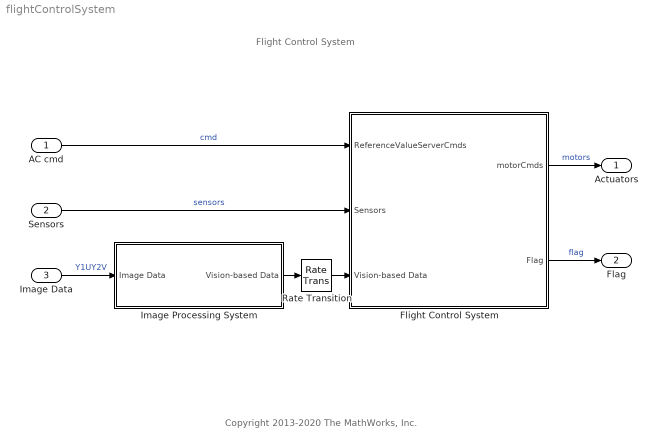
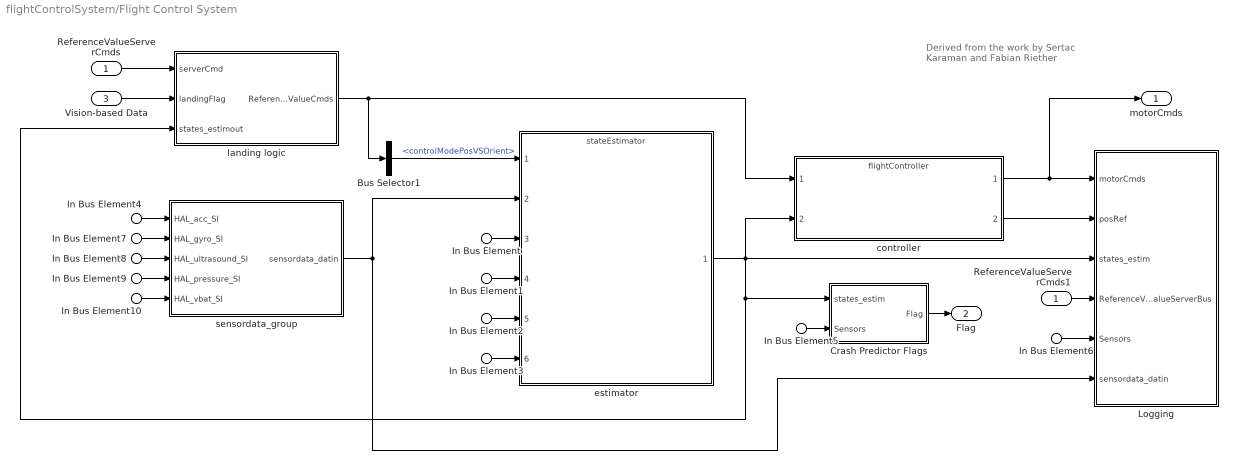
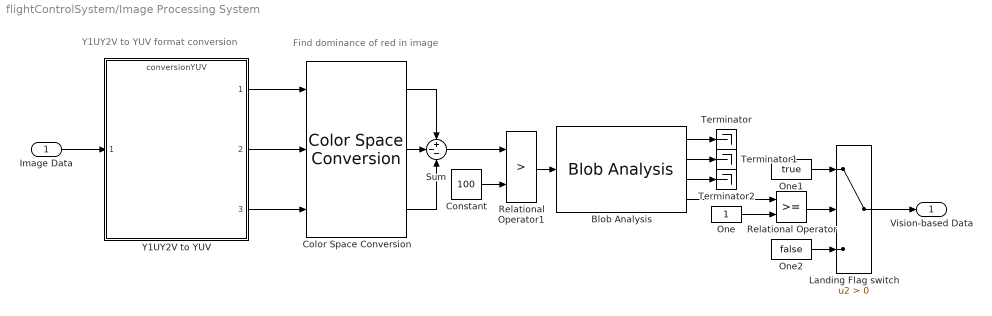
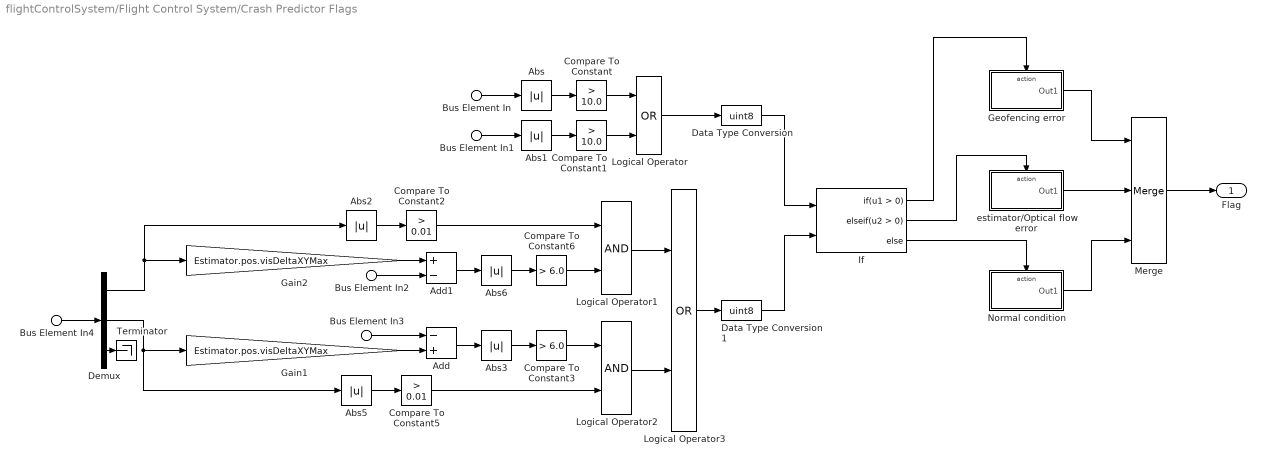
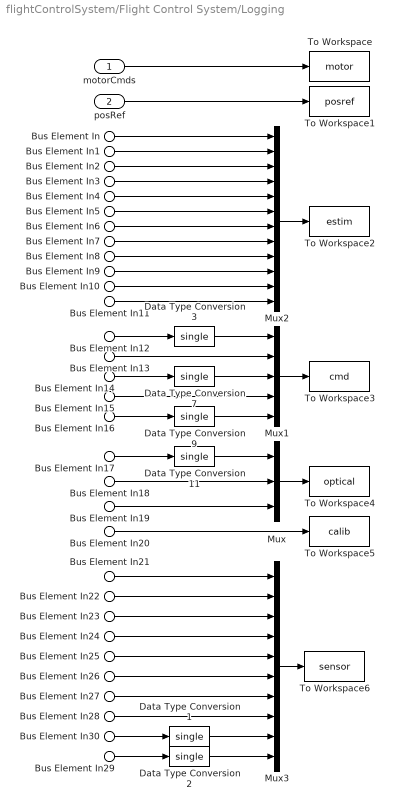
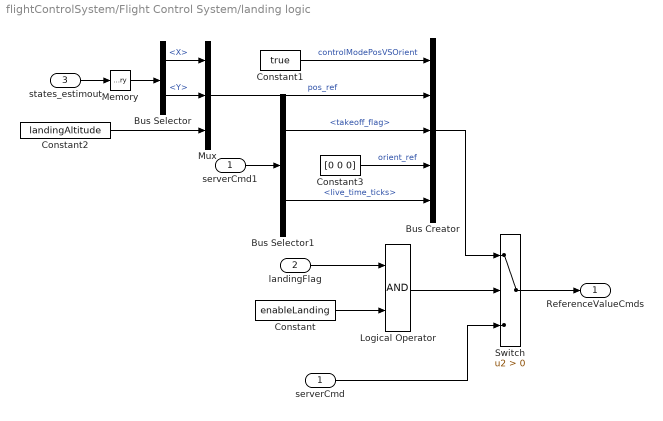
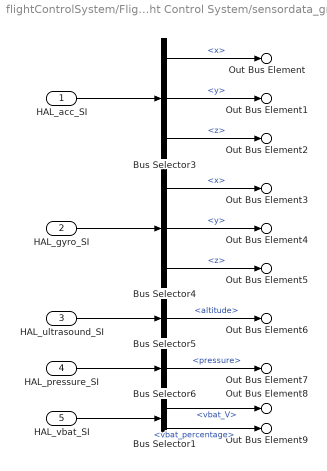
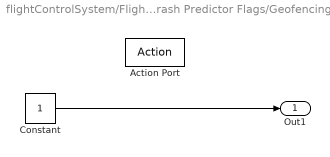
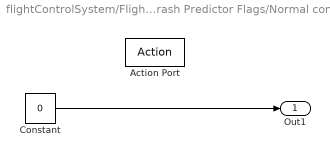
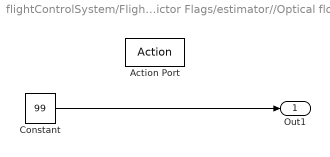
/*
 * Academic License - for use in teaching, academic research, and meeting
 * course requirements at degree granting institutions only.  Not for
 * government, commercial, or other organizational use.
 *
 * File: flightControlSystem.c
 *
 * Code generated for Simulink model 'flightControlSystem'.
 *
 * Model version                  : 5.1
 * Simulink Coder version         : 9.6 (R2021b) 14-May-2021
 * C/C++ source code generated on : Tue Nov 30 09:39:25 2021
 *
 * Target selection: ert.tlc
 * Embedded hardware selection: ARM Compatible->ARM 9
 * Code generation objectives: Unspecified
 * Validation result: Not run
 */

#include "flightControlSystem.h"
#include "flightControlSystem_private.h"

/* Exported block signals */
CommandBus cmd_inport;                 /* '<Root>/AC cmd' */
SensorsBus sensor_inport;              /* '<Root>/Sensors' */
real32_T motors_outport[4];            /* '<S1>/controller' */
uint8_T flag_outport;                  /* '<S3>/Merge' */

/* Block signals (default storage) */
B_flightControlSystem_T flightControlSystem_B;

/* Block states (default storage) */
DW_flightControlSystem_T flightControlSystem_DW;

/* External outputs (root outports fed by signals with default storage) */
ExtY_flightControlSystem_T flightControlSystem_Y;

/* Real-time model */
static RT_MODEL_flightControlSystem_T flightControlSystem_M_;
RT_MODEL_flightControlSystem_T *const flightControlSystem_M =
  &flightControlSystem_M_;
static void rate_monotonic_scheduler(void);

/*
 * Set which subrates need to run this base step (base rate always runs).
 * This function must be called prior to calling the model step function
 * in order to "remember" which rates need to run this base step.  The
 * buffering of events allows for overlapping preemption.
 */
void flightControlSystem_SetEventsForThisBaseStep(boolean_T *eventFlags)
{
  /* Task runs when its counter is zero, computed via rtmStepTask macro */
  eventFlags[1] = ((boolean_T)rtmStepTask(flightControlSystem_M, 1));
}

/*
 *         This function updates active task flag for each subrate
 *         and rate transition flags for tasks that exchange data.
 *         The function assumes rate-monotonic multitasking scheduler.
 *         The function must be called at model base rate so that
 *         the generated code self-manages all its subrates and rate
 *         transition flags.
 */
static void rate_monotonic_scheduler(void)
{
  /* Compute which subrates run during the next base time step.  Subrates
   * are an integer multiple of the base rate counter.  Therefore, the subtask
   * counter is reset when it reaches its limit (zero means run).
   */
  (flightControlSystem_M->Timing.TaskCounters.TID[1])++;
  if ((flightControlSystem_M->Timing.TaskCounters.TID[1]) > 39) {/* Sample time: [0.2s, 0.0s] */
    flightControlSystem_M->Timing.TaskCounters.TID[1] = 0;
  }
}

/*
 * Output and update for action system:
 *    '<S3>/Geofencing error'
 *    '<S3>/estimator//Optical flow error'
 *    '<S3>/Normal condition'
 */
void flightControlSystem_Geofencingerror(uint8_T *rty_Out1,
  P_Geofencingerror_flightControlSystem_T *localP)
{
  /* SignalConversion generated from: '<S13>/Out1' incorporates:
   *  Constant: '<S13>/Constant'
   */
  *rty_Out1 = localP->Constant_Value;
}

/* System initialize for atomic system: '<S1>/Logging' */
void flightControlSystem_Logging_Init(RT_MODEL_flightControlSystem_T * const
  flightControlSystem_M, DW_Logging_flightControlSystem_T *localDW)
{
  /* SetupRuntimeResources for ToWorkspace: '<S4>/To Workspace2' */
  {
    static int_T rt_ToWksWidths[] = { 12 };

    static int_T rt_ToWksNumDimensions[] = { 1 };

    static int_T rt_ToWksDimensions[] = { 12 };

    static boolean_T rt_ToWksIsVarDims[] = { 0 };

    static void *rt_ToWksCurrSigDims[] = { (NULL) };

    static int_T rt_ToWksCurrSigDimsSize[] = { 4 };

    static BuiltInDTypeId rt_ToWksDataTypeIds[] = { SS_SINGLE };

    static int_T rt_ToWksComplexSignals[] = { 0 };

    static int_T rt_ToWksFrameData[] = { 0 };

    static RTWPreprocessingFcnPtr rt_ToWksLoggingPreprocessingFcnPtrs[] = {
      (NULL)
    };

    static const char_T *rt_ToWksLabels[] = { "" };

    static RTWLogSignalInfo rt_ToWksSignalInfo = {
      1,
      rt_ToWksWidths,
      rt_ToWksNumDimensions,
      rt_ToWksDimensions,
      rt_ToWksIsVarDims,
      rt_ToWksCurrSigDims,
      rt_ToWksCurrSigDimsSize,
      rt_ToWksDataTypeIds,
      rt_ToWksComplexSignals,
      rt_ToWksFrameData,
      rt_ToWksLoggingPreprocessingFcnPtrs,

      { rt_ToWksLabels },
      (NULL),
      (NULL),
      (NULL),

      { (NULL) },

      { (NULL) },
      (NULL),
      (NULL)
    };

    static const char_T rt_ToWksBlockName[] =
      "flightControlSystem/Flight Control System/Logging/To Workspace2";
    localDW->ToWorkspace2_PWORK.LoggedData = rt_CreateStructLogVar(
      flightControlSystem_M->rtwLogInfo,
      0.0,
      rtmGetTFinal(flightControlSystem_M),
      flightControlSystem_M->Timing.stepSize0,
      (&rtmGetErrorStatus(flightControlSystem_M)),
      "estim",
      1,
      0,
      1,
      0.005,
      &rt_ToWksSignalInfo,
      rt_ToWksBlockName);
    if (localDW->ToWorkspace2_PWORK.LoggedData == (NULL))
      return;
  }

  /* SetupRuntimeResources for ToWorkspace: '<S4>/To Workspace6' */
  {
    static int_T rt_ToWksWidths[] = { 10 };

    static int_T rt_ToWksNumDimensions[] = { 1 };

    static int_T rt_ToWksDimensions[] = { 10 };

    static boolean_T rt_ToWksIsVarDims[] = { 0 };

    static void *rt_ToWksCurrSigDims[] = { (NULL) };

    static int_T rt_ToWksCurrSigDimsSize[] = { 4 };

    static BuiltInDTypeId rt_ToWksDataTypeIds[] = { SS_SINGLE };

    static int_T rt_ToWksComplexSignals[] = { 0 };

    static int_T rt_ToWksFrameData[] = { 0 };

    static RTWPreprocessingFcnPtr rt_ToWksLoggingPreprocessingFcnPtrs[] = {
      (NULL)
    };

    static const char_T *rt_ToWksLabels[] = { "" };

    static RTWLogSignalInfo rt_ToWksSignalInfo = {
      1,
      rt_ToWksWidths,
      rt_ToWksNumDimensions,
      rt_ToWksDimensions,
      rt_ToWksIsVarDims,
      rt_ToWksCurrSigDims,
      rt_ToWksCurrSigDimsSize,
      rt_ToWksDataTypeIds,
      rt_ToWksComplexSignals,
      rt_ToWksFrameData,
      rt_ToWksLoggingPreprocessingFcnPtrs,

      { rt_ToWksLabels },
      (NULL),
      (NULL),
      (NULL),

      { (NULL) },

      { (NULL) },
      (NULL),
      (NULL)
    };

    static const char_T rt_ToWksBlockName[] =
      "flightControlSystem/Flight Control System/Logging/To Workspace6";
    localDW->ToWorkspace6_PWORK.LoggedData = rt_CreateStructLogVar(
      flightControlSystem_M->rtwLogInfo,
      0.0,
      rtmGetTFinal(flightControlSystem_M),
      flightControlSystem_M->Timing.stepSize0,
      (&rtmGetErrorStatus(flightControlSystem_M)),
      "sensor",
      1,
      0,
      1,
      0.005,
      &rt_ToWksSignalInfo,
      rt_ToWksBlockName);
    if (localDW->ToWorkspace6_PWORK.LoggedData == (NULL))
      return;
  }

  /* SetupRuntimeResources for ToWorkspace: '<S4>/To Workspace3' */
  {
    static int_T rt_ToWksWidths[] = { 9 };

    static int_T rt_ToWksNumDimensions[] = { 1 };

    static int_T rt_ToWksDimensions[] = { 9 };

    static boolean_T rt_ToWksIsVarDims[] = { 0 };

    static void *rt_ToWksCurrSigDims[] = { (NULL) };

    static int_T rt_ToWksCurrSigDimsSize[] = { 4 };

    static BuiltInDTypeId rt_ToWksDataTypeIds[] = { SS_SINGLE };

    static int_T rt_ToWksComplexSignals[] = { 0 };

    static int_T rt_ToWksFrameData[] = { 0 };

    static RTWPreprocessingFcnPtr rt_ToWksLoggingPreprocessingFcnPtrs[] = {
      (NULL)
    };

    static const char_T *rt_ToWksLabels[] = { "" };

    static RTWLogSignalInfo rt_ToWksSignalInfo = {
      1,
      rt_ToWksWidths,
      rt_ToWksNumDimensions,
      rt_ToWksDimensions,
      rt_ToWksIsVarDims,
      rt_ToWksCurrSigDims,
      rt_ToWksCurrSigDimsSize,
      rt_ToWksDataTypeIds,
      rt_ToWksComplexSignals,
      rt_ToWksFrameData,
      rt_ToWksLoggingPreprocessingFcnPtrs,

      { rt_ToWksLabels },
      (NULL),
      (NULL),
      (NULL),

      { (NULL) },

      { (NULL) },
      (NULL),
      (NULL)
    };

    static const char_T rt_ToWksBlockName[] =
      "flightControlSystem/Flight Control System/Logging/To Workspace3";
    localDW->ToWorkspace3_PWORK.LoggedData = rt_CreateStructLogVar(
      flightControlSystem_M->rtwLogInfo,
      0.0,
      rtmGetTFinal(flightControlSystem_M),
      flightControlSystem_M->Timing.stepSize0,
      (&rtmGetErrorStatus(flightControlSystem_M)),
      "cmd",
      1,
      0,
      1,
      0.005,
      &rt_ToWksSignalInfo,
      rt_ToWksBlockName);
    if (localDW->ToWorkspace3_PWORK.LoggedData == (NULL))
      return;
  }

  /* SetupRuntimeResources for ToWorkspace: '<S4>/To Workspace4' */
  {
    static int_T rt_ToWksWidths[] = { 8 };

    static int_T rt_ToWksNumDimensions[] = { 1 };

    static int_T rt_ToWksDimensions[] = { 8 };

    static boolean_T rt_ToWksIsVarDims[] = { 0 };

    static void *rt_ToWksCurrSigDims[] = { (NULL) };

    static int_T rt_ToWksCurrSigDimsSize[] = { 4 };

    static BuiltInDTypeId rt_ToWksDataTypeIds[] = { SS_SINGLE };

    static int_T rt_ToWksComplexSignals[] = { 0 };

    static int_T rt_ToWksFrameData[] = { 0 };

    static RTWPreprocessingFcnPtr rt_ToWksLoggingPreprocessingFcnPtrs[] = {
      (NULL)
    };

    static const char_T *rt_ToWksLabels[] = { "" };

    static RTWLogSignalInfo rt_ToWksSignalInfo = {
      1,
      rt_ToWksWidths,
      rt_ToWksNumDimensions,
      rt_ToWksDimensions,
      rt_ToWksIsVarDims,
      rt_ToWksCurrSigDims,
      rt_ToWksCurrSigDimsSize,
      rt_ToWksDataTypeIds,
      rt_ToWksComplexSignals,
      rt_ToWksFrameData,
      rt_ToWksLoggingPreprocessingFcnPtrs,

      { rt_ToWksLabels },
      (NULL),
      (NULL),
      (NULL),

      { (NULL) },

      { (NULL) },
      (NULL),
      (NULL)
    };

    static const char_T rt_ToWksBlockName[] =
      "flightControlSystem/Flight Control System/Logging/To Workspace4";
    localDW->ToWorkspace4_PWORK.LoggedData = rt_CreateStructLogVar(
      flightControlSystem_M->rtwLogInfo,
      0.0,
      rtmGetTFinal(flightControlSystem_M),
      flightControlSystem_M->Timing.stepSize0,
      (&rtmGetErrorStatus(flightControlSystem_M)),
      "optical",
      1,
      0,
      1,
      0.005,
      &rt_ToWksSignalInfo,
      rt_ToWksBlockName);
    if (localDW->ToWorkspace4_PWORK.LoggedData == (NULL))
      return;
  }

  /* SetupRuntimeResources for ToWorkspace: '<S4>/To Workspace5' */
  {
    static int_T rt_ToWksWidths[] = { 8 };

    static int_T rt_ToWksNumDimensions[] = { 1 };

    static int_T rt_ToWksDimensions[] = { 8 };

    static boolean_T rt_ToWksIsVarDims[] = { 0 };

    static void *rt_ToWksCurrSigDims[] = { (NULL) };

    static int_T rt_ToWksCurrSigDimsSize[] = { 4 };

    static BuiltInDTypeId rt_ToWksDataTypeIds[] = { SS_SINGLE };

    static int_T rt_ToWksComplexSignals[] = { 0 };

    static int_T rt_ToWksFrameData[] = { 0 };

    static RTWPreprocessingFcnPtr rt_ToWksLoggingPreprocessingFcnPtrs[] = {
      (NULL)
    };

    static const char_T *rt_ToWksLabels[] = { "SensorCalibration" };

    static RTWLogSignalInfo rt_ToWksSignalInfo = {
      1,
      rt_ToWksWidths,
      rt_ToWksNumDimensions,
      rt_ToWksDimensions,
      rt_ToWksIsVarDims,
      rt_ToWksCurrSigDims,
      rt_ToWksCurrSigDimsSize,
      rt_ToWksDataTypeIds,
      rt_ToWksComplexSignals,
      rt_ToWksFrameData,
      rt_ToWksLoggingPreprocessingFcnPtrs,

      { rt_ToWksLabels },
      (NULL),
      (NULL),
      (NULL),

      { (NULL) },

      { (NULL) },
      (NULL),
      (NULL)
    };

    static const char_T rt_ToWksBlockName[] =
      "flightControlSystem/Flight Control System/Logging/To Workspace5";
    localDW->ToWorkspace5_PWORK.LoggedData = rt_CreateStructLogVar(
      flightControlSystem_M->rtwLogInfo,
      0.0,
      rtmGetTFinal(flightControlSystem_M),
      flightControlSystem_M->Timing.stepSize0,
      (&rtmGetErrorStatus(flightControlSystem_M)),
      "calib",
      1,
      0,
      100,
      0.005,
      &rt_ToWksSignalInfo,
      rt_ToWksBlockName);
    if (localDW->ToWorkspace5_PWORK.LoggedData == (NULL))
      return;
  }

  /* SetupRuntimeResources for ToWorkspace: '<S4>/To Workspace' */
  {
    static int_T rt_ToWksWidths[] = { 4 };

    static int_T rt_ToWksNumDimensions[] = { 1 };

    static int_T rt_ToWksDimensions[] = { 4 };

    static boolean_T rt_ToWksIsVarDims[] = { 0 };

    static void *rt_ToWksCurrSigDims[] = { (NULL) };

    static int_T rt_ToWksCurrSigDimsSize[] = { 4 };

    static BuiltInDTypeId rt_ToWksDataTypeIds[] = { SS_SINGLE };

    static int_T rt_ToWksComplexSignals[] = { 0 };

    static int_T rt_ToWksFrameData[] = { 0 };

    static RTWPreprocessingFcnPtr rt_ToWksLoggingPreprocessingFcnPtrs[] = {
      (NULL)
    };

    static const char_T *rt_ToWksLabels[] = { "" };

    static RTWLogSignalInfo rt_ToWksSignalInfo = {
      1,
      rt_ToWksWidths,
      rt_ToWksNumDimensions,
      rt_ToWksDimensions,
      rt_ToWksIsVarDims,
      rt_ToWksCurrSigDims,
      rt_ToWksCurrSigDimsSize,
      rt_ToWksDataTypeIds,
      rt_ToWksComplexSignals,
      rt_ToWksFrameData,
      rt_ToWksLoggingPreprocessingFcnPtrs,

      { rt_ToWksLabels },
      (NULL),
      (NULL),
      (NULL),

      { (NULL) },

      { (NULL) },
      (NULL),
      (NULL)
    };

    static const char_T rt_ToWksBlockName[] =
      "flightControlSystem/Flight Control System/Logging/To Workspace";
    localDW->ToWorkspace_PWORK.LoggedData = rt_CreateStructLogVar(
      flightControlSystem_M->rtwLogInfo,
      0.0,
      rtmGetTFinal(flightControlSystem_M),
      flightControlSystem_M->Timing.stepSize0,
      (&rtmGetErrorStatus(flightControlSystem_M)),
      "motor",
      1,
      0,
      1,
      0.005,
      &rt_ToWksSignalInfo,
      rt_ToWksBlockName);
    if (localDW->ToWorkspace_PWORK.LoggedData == (NULL))
      return;
  }

  /* SetupRuntimeResources for ToWorkspace: '<S4>/To Workspace1' */
  {
    static int_T rt_ToWksWidths[] = { 8 };

    static int_T rt_ToWksNumDimensions[] = { 1 };

    static int_T rt_ToWksDimensions[] = { 8 };

    static boolean_T rt_ToWksIsVarDims[] = { 0 };

    static void *rt_ToWksCurrSigDims[] = { (NULL) };

    static int_T rt_ToWksCurrSigDimsSize[] = { 4 };

    static BuiltInDTypeId rt_ToWksDataTypeIds[] = { SS_SINGLE };

    static int_T rt_ToWksComplexSignals[] = { 0 };

    static int_T rt_ToWksFrameData[] = { 0 };

    static RTWPreprocessingFcnPtr rt_ToWksLoggingPreprocessingFcnPtrs[] = {
      (NULL)
    };

    static const char_T *rt_ToWksLabels[] = { "" };

    static RTWLogSignalInfo rt_ToWksSignalInfo = {
      1,
      rt_ToWksWidths,
      rt_ToWksNumDimensions,
      rt_ToWksDimensions,
      rt_ToWksIsVarDims,
      rt_ToWksCurrSigDims,
      rt_ToWksCurrSigDimsSize,
      rt_ToWksDataTypeIds,
      rt_ToWksComplexSignals,
      rt_ToWksFrameData,
      rt_ToWksLoggingPreprocessingFcnPtrs,

      { rt_ToWksLabels },
      (NULL),
      (NULL),
      (NULL),

      { (NULL) },

      { (NULL) },
      (NULL),
      (NULL)
    };

    static const char_T rt_ToWksBlockName[] =
      "flightControlSystem/Flight Control System/Logging/To Workspace1";
    localDW->ToWorkspace1_PWORK.LoggedData = rt_CreateStructLogVar(
      flightControlSystem_M->rtwLogInfo,
      0.0,
      rtmGetTFinal(flightControlSystem_M),
      flightControlSystem_M->Timing.stepSize0,
      (&rtmGetErrorStatus(flightControlSystem_M)),
      "posref",
      1,
      0,
      1,
      0.005,
      &rt_ToWksSignalInfo,
      rt_ToWksBlockName);
    if (localDW->ToWorkspace1_PWORK.LoggedData == (NULL))
      return;
  }
}

/* Output and update for atomic system: '<S1>/Logging' */
void flightControlSystem_Logging(RT_MODEL_flightControlSystem_T * const
  flightControlSystem_M, const real32_T rtu_motorCmds[4], const real32_T
  rtu_posRef[8], const statesEstim_t *rtu_states_estim_Inport_3, const
  CommandBus *rtu_ReferenceValueServerBus_Inport_4, const SensorsBus
  *rtu_Sensors_Inport_5, real32_T rtu_sensordata_datin_Inport_6, uint32_T
  rtu_sensordata_datin_Inport_6_d, real32_T rtu_sensordata_datin_Inport_6_e,
  real32_T rtu_sensordata_datin_Inport_6_c, real32_T
  rtu_sensordata_datin_Inport_6_cg, real32_T rtu_sensordata_datin_Inport_6_i,
  real32_T rtu_sensordata_datin_Inport_6_h, real32_T
  rtu_sensordata_datin_Inport_6_b, real32_T rtu_sensordata_datin_Inport_6_dz,
  real32_T rtu_sensordata_datin_Inport_6_n, B_Logging_flightControlSystem_T
  *localB, DW_Logging_flightControlSystem_T *localDW)
{
  int32_T i;
  real32_T rtb_TmpSignalConversionAtToWorkspace4Inport1[8];
  real32_T rtb_DataTypeConversion11;
  real32_T rtb_DataTypeConversion7;

  /* SignalConversion generated from: '<S4>/To Workspace2' incorporates:
   *  SignalConversion generated from: '<S4>/states_estim_BusSelector'
   */
  localB->TmpSignalConversionAtToWorkspace2Inport1[0] =
    rtu_states_estim_Inport_3->X;
  localB->TmpSignalConversionAtToWorkspace2Inport1[1] =
    rtu_states_estim_Inport_3->Y;
  localB->TmpSignalConversionAtToWorkspace2Inport1[2] =
    rtu_states_estim_Inport_3->Z;
  localB->TmpSignalConversionAtToWorkspace2Inport1[3] =
    rtu_states_estim_Inport_3->yaw;
  localB->TmpSignalConversionAtToWorkspace2Inport1[4] =
    rtu_states_estim_Inport_3->pitch;
  localB->TmpSignalConversionAtToWorkspace2Inport1[5] =
    rtu_states_estim_Inport_3->roll;
  localB->TmpSignalConversionAtToWorkspace2Inport1[6] =
    rtu_states_estim_Inport_3->dx;
  localB->TmpSignalConversionAtToWorkspace2Inport1[7] =
    rtu_states_estim_Inport_3->dy;
  localB->TmpSignalConversionAtToWorkspace2Inport1[8] =
    rtu_states_estim_Inport_3->dz;
  localB->TmpSignalConversionAtToWorkspace2Inport1[9] =
    rtu_states_estim_Inport_3->p;

  /* DataTypeConversion: '<S4>/Data Type Conversion7' incorporates:
   *  SignalConversion generated from: '<S4>/states_estim_BusSelector'
   */
  rtb_DataTypeConversion7 = rtu_states_estim_Inport_3->q;

  /* DataTypeConversion: '<S4>/Data Type Conversion11' incorporates:
   *  SignalConversion generated from: '<S4>/states_estim_BusSelector'
   */
  rtb_DataTypeConversion11 = rtu_states_estim_Inport_3->r;

  /* SignalConversion generated from: '<S4>/To Workspace2' */
  localB->TmpSignalConversionAtToWorkspace2Inport1[10] = rtb_DataTypeConversion7;
  localB->TmpSignalConversionAtToWorkspace2Inport1[11] =
    rtb_DataTypeConversion11;

  /* ToWorkspace: '<S4>/To Workspace2' */
  {
    double locTime = flightControlSystem_M->Timing.taskTime0
      ;
    rt_UpdateStructLogVar((StructLogVar *)localDW->ToWorkspace2_PWORK.LoggedData,
                          &locTime,
                          &localB->TmpSignalConversionAtToWorkspace2Inport1[0]);
  }

  /* DataTypeConversion: '<S4>/Data Type Conversion11' incorporates:
   *  DataTypeConversion: '<S4>/Data Type Conversion1'
   */
  rtb_DataTypeConversion11 = rtu_sensordata_datin_Inport_6;

  /* DataTypeConversion: '<S4>/Data Type Conversion7' incorporates:
   *  DataTypeConversion: '<S4>/Data Type Conversion2'
   */
  rtb_DataTypeConversion7 = (real32_T)rtu_sensordata_datin_Inport_6_d;

  /* SignalConversion generated from: '<S4>/To Workspace6' */
  localB->TmpSignalConversionAtToWorkspace6Inport1[0] =
    rtu_sensordata_datin_Inport_6_e;
  localB->TmpSignalConversionAtToWorkspace6Inport1[1] =
    rtu_sensordata_datin_Inport_6_c;
  localB->TmpSignalConversionAtToWorkspace6Inport1[2] =
    rtu_sensordata_datin_Inport_6_cg;
  localB->TmpSignalConversionAtToWorkspace6Inport1[3] =
    rtu_sensordata_datin_Inport_6_i;
  localB->TmpSignalConversionAtToWorkspace6Inport1[4] =
    rtu_sensordata_datin_Inport_6_h;
  localB->TmpSignalConversionAtToWorkspace6Inport1[5] =
    rtu_sensordata_datin_Inport_6_b;
  localB->TmpSignalConversionAtToWorkspace6Inport1[6] =
    rtu_sensordata_datin_Inport_6_dz;
  localB->TmpSignalConversionAtToWorkspace6Inport1[7] =
    rtu_sensordata_datin_Inport_6_n;
  localB->TmpSignalConversionAtToWorkspace6Inport1[8] = rtb_DataTypeConversion11;
  localB->TmpSignalConversionAtToWorkspace6Inport1[9] = rtb_DataTypeConversion7;

  /* ToWorkspace: '<S4>/To Workspace6' */
  {
    double locTime = flightControlSystem_M->Timing.taskTime0
      ;
    rt_UpdateStructLogVar((StructLogVar *)localDW->ToWorkspace6_PWORK.LoggedData,
                          &locTime,
                          &localB->TmpSignalConversionAtToWorkspace6Inport1[0]);
  }

  /* DataTypeConversion: '<S4>/Data Type Conversion11' incorporates:
   *  DataTypeConversion: '<S4>/Data Type Conversion3'
   */
  rtb_DataTypeConversion11 =
    rtu_ReferenceValueServerBus_Inport_4->controlModePosVSOrient;

  /* SignalConversion generated from: '<S4>/To Workspace3' incorporates:
   *  SignalConversion generated from: '<S4>/ReferenceValueServerBus_BusSelector'
   */
  localB->TmpSignalConversionAtToWorkspace3Inport1[1] =
    rtu_ReferenceValueServerBus_Inport_4->pos_ref[0];
  localB->TmpSignalConversionAtToWorkspace3Inport1[2] =
    rtu_ReferenceValueServerBus_Inport_4->pos_ref[1];
  localB->TmpSignalConversionAtToWorkspace3Inport1[3] =
    rtu_ReferenceValueServerBus_Inport_4->pos_ref[2];

  /* DataTypeConversion: '<S4>/Data Type Conversion7' */
  rtb_DataTypeConversion7 = rtu_ReferenceValueServerBus_Inport_4->takeoff_flag;

  /* SignalConversion generated from: '<S4>/To Workspace3' incorporates:
   *  DataTypeConversion: '<S4>/Data Type Conversion9'
   *  SignalConversion generated from: '<S4>/ReferenceValueServerBus_BusSelector'
   */
  localB->TmpSignalConversionAtToWorkspace3Inport1[5] =
    rtu_ReferenceValueServerBus_Inport_4->orient_ref[0];
  localB->TmpSignalConversionAtToWorkspace3Inport1[6] =
    rtu_ReferenceValueServerBus_Inport_4->orient_ref[1];
  localB->TmpSignalConversionAtToWorkspace3Inport1[7] =
    rtu_ReferenceValueServerBus_Inport_4->orient_ref[2];
  localB->TmpSignalConversionAtToWorkspace3Inport1[8] = (real32_T)
    rtu_ReferenceValueServerBus_Inport_4->live_time_ticks;
  localB->TmpSignalConversionAtToWorkspace3Inport1[0] = rtb_DataTypeConversion11;
  localB->TmpSignalConversionAtToWorkspace3Inport1[4] = rtb_DataTypeConversion7;

  /* ToWorkspace: '<S4>/To Workspace3' */
  {
    double locTime = flightControlSystem_M->Timing.taskTime0
      ;
    rt_UpdateStructLogVar((StructLogVar *)localDW->ToWorkspace3_PWORK.LoggedData,
                          &locTime,
                          &localB->TmpSignalConversionAtToWorkspace3Inport1[0]);
  }

  /* DataTypeConversion: '<S4>/Data Type Conversion11' */
  rtb_DataTypeConversion11 = rtu_Sensors_Inport_5->VisionSensors.usePosVIS_flag;

  /* SignalConversion generated from: '<S4>/To Workspace4' incorporates:
   *  SignalConversion generated from: '<S4>/Sensors_BusSelector'
   */
  rtb_TmpSignalConversionAtToWorkspace4Inport1[1] =
    rtu_Sensors_Inport_5->VisionSensors.opticalFlow_data[0];
  rtb_TmpSignalConversionAtToWorkspace4Inport1[2] =
    rtu_Sensors_Inport_5->VisionSensors.opticalFlow_data[1];
  rtb_TmpSignalConversionAtToWorkspace4Inport1[3] =
    rtu_Sensors_Inport_5->VisionSensors.opticalFlow_data[2];
  rtb_TmpSignalConversionAtToWorkspace4Inport1[4] =
    rtu_Sensors_Inport_5->VisionSensors.posVIS_data[0];
  rtb_TmpSignalConversionAtToWorkspace4Inport1[5] =
    rtu_Sensors_Inport_5->VisionSensors.posVIS_data[1];
  rtb_TmpSignalConversionAtToWorkspace4Inport1[6] =
    rtu_Sensors_Inport_5->VisionSensors.posVIS_data[2];
  rtb_TmpSignalConversionAtToWorkspace4Inport1[7] =
    rtu_Sensors_Inport_5->VisionSensors.posVIS_data[3];
  rtb_TmpSignalConversionAtToWorkspace4Inport1[0] = rtb_DataTypeConversion11;

  /* ToWorkspace: '<S4>/To Workspace4' */
  {
    double locTime = flightControlSystem_M->Timing.taskTime0
      ;
    rt_UpdateStructLogVar((StructLogVar *)localDW->ToWorkspace4_PWORK.LoggedData,
                          &locTime,
                          &rtb_TmpSignalConversionAtToWorkspace4Inport1[0]);
  }

  /* SignalConversion generated from: '<S4>/Sensors_BusSelector' */
  for (i = 0; i < 8; i++) {
    rtb_TmpSignalConversionAtToWorkspace4Inport1[i] =
      rtu_Sensors_Inport_5->SensorCalibration[i];
  }

  /* ToWorkspace: '<S4>/To Workspace5' */
  {
    double locTime = flightControlSystem_M->Timing.taskTime0
      ;
    rt_UpdateStructLogVar((StructLogVar *)localDW->ToWorkspace5_PWORK.LoggedData,
                          &locTime,
                          &rtb_TmpSignalConversionAtToWorkspace4Inport1[0]);
  }

  /* ToWorkspace: '<S4>/To Workspace' */
  {
    double locTime = flightControlSystem_M->Timing.taskTime0
      ;
    rt_UpdateStructLogVar((StructLogVar *)localDW->ToWorkspace_PWORK.LoggedData,
                          &locTime, &rtu_motorCmds[0]);
  }

  /* ToWorkspace: '<S4>/To Workspace1' */
  {
    double locTime = flightControlSystem_M->Timing.taskTime0
      ;
    rt_UpdateStructLogVar((StructLogVar *)localDW->ToWorkspace1_PWORK.LoggedData,
                          &locTime, &rtu_posRef[0]);
  }
}

/* System initialize for atomic system: '<Root>/Flight Control System' */
void flightControlSystem_FlightControlSystem_Init(RT_MODEL_flightControlSystem_T
  * const flightControlSystem_M, uint8_T *rty_Flag,
  DW_FlightControlSystem_flightControlSystem_T *localDW,
  P_FlightControlSystem_flightControlSystem_T *localP)
{
  /* InitializeConditions for Memory: '<S5>/Memory' */
  localDW->Memory_PreviousInput = localP->Memory_InitialCondition;

  /* SystemInitialize for Atomic SubSystem: '<S1>/Logging' */
  flightControlSystem_Logging_Init(flightControlSystem_M, &localDW->Logging);

  /* End of SystemInitialize for SubSystem: '<S1>/Logging' */

  /* SystemInitialize for Merge: '<S3>/Merge' */
  *rty_Flag = localP->Merge_InitialOutput;

  /* SystemInitialize for ModelReference: '<S1>/controller' */
  flightController_Init();

  /* SystemInitialize for ModelReference: '<S1>/estimator' */
  stateEstimator_Init();
}

/* Output and update for atomic system: '<Root>/Flight Control System' */
void flightControlSystem_FlightControlSystem(RT_MODEL_flightControlSystem_T *
  const flightControlSystem_M, const CommandBus *rtu_ReferenceValueServerCmds,
  const SensorsBus *rtu_Sensors_Inport_2, boolean_T rtu_VisionbasedData,
  real32_T rty_motorCmds[4], uint8_T *rty_Flag,
  B_FlightControlSystem_flightControlSystem_T *localB,
  DW_FlightControlSystem_flightControlSystem_T *localDW,
  P_FlightControlSystem_flightControlSystem_T *localP)
{
  /* BusCreator: '<S5>/Bus Creator' */
  localB->Compare_h = rtu_ReferenceValueServerCmds->takeoff_flag;
  localB->rtb_BusCreator_live_time_ticks =
    rtu_ReferenceValueServerCmds->live_time_ticks;

  /* Switch: '<S5>/Switch' incorporates:
   *  BusCreator: '<S5>/Bus Creator'
   *  Constant: '<S5>/Constant'
   *  Constant: '<S5>/Constant1'
   *  Constant: '<S5>/Constant2'
   *  Constant: '<S5>/Constant3'
   *  Logic: '<S5>/Logical Operator'
   *  Memory: '<S5>/Memory'
   *  SignalConversion generated from: '<S5>/Bus Creator'
   */
  if (rtu_VisionbasedData && rtP_enableLanding) {
    localB->Switch.controlModePosVSOrient = localP->Constant1_Value;
    localB->Switch.pos_ref[0] = localDW->Memory_PreviousInput.X;
    localB->Switch.pos_ref[1] = localDW->Memory_PreviousInput.Y;
    localB->Switch.pos_ref[2] = rtP_landingAltitude;
    localB->Switch.takeoff_flag = localB->Compare_h;
    localB->Switch.orient_ref[0] = localP->Constant3_Value[0];
    localB->Switch.orient_ref[1] = localP->Constant3_Value[1];
    localB->Switch.orient_ref[2] = localP->Constant3_Value[2];
    localB->Switch.live_time_ticks = localB->rtb_BusCreator_live_time_ticks;
  } else {
    localB->Switch = *rtu_ReferenceValueServerCmds;
  }

  /* End of Switch: '<S5>/Switch' */

  /* SignalConversion generated from: '<S6>/Bus Selector3' */
  localB->rtb_x_m = rtu_Sensors_Inport_2->HALSensors.HAL_acc_SI.x;

  /* SignalConversion generated from: '<S6>/Bus Selector3' */
  localB->rtb_y_c = rtu_Sensors_Inport_2->HALSensors.HAL_acc_SI.y;

  /* SignalConversion generated from: '<S6>/Bus Selector3' */
  localB->rtb_z_k = rtu_Sensors_Inport_2->HALSensors.HAL_acc_SI.z;

  /* SignalConversion generated from: '<S6>/Bus Selector4' */
  localB->rtb_x_c_c = rtu_Sensors_Inport_2->HALSensors.HAL_gyro_SI.x;

  /* SignalConversion generated from: '<S6>/Bus Selector4' */
  localB->rtb_y_n_b = rtu_Sensors_Inport_2->HALSensors.HAL_gyro_SI.y;

  /* SignalConversion generated from: '<S6>/Bus Selector4' */
  localB->rtb_z_p_p = rtu_Sensors_Inport_2->HALSensors.HAL_gyro_SI.z;

  /* SignalConversion generated from: '<S6>/Bus Selector5' */
  localB->rtb_altitude_c =
    rtu_Sensors_Inport_2->HALSensors.HAL_ultrasound_SI.altitude;

  /* SignalConversion generated from: '<S6>/Bus Selector6' */
  localB->rtb_pressure_f =
    rtu_Sensors_Inport_2->HALSensors.HAL_pressure_SI.pressure;

  /* SignalConversion generated from: '<S6>/Bus Selector1' */
  localB->rtb_vbat_V_g = rtu_Sensors_Inport_2->HALSensors.HAL_vbat_SI.vbat_V;

  /* SignalConversion generated from: '<S6>/Bus Selector1' */
  localB->rtb_vbat_percentage_g =
    rtu_Sensors_Inport_2->HALSensors.HAL_vbat_SI.vbat_percentage;

  /* BusCreator generated from: '<S1>/estimator' */
  localB->BusConversion_InsertedFor_estimator_at_inport_1_BusCreator1.ddx =
    localB->rtb_x_m;
  localB->BusConversion_InsertedFor_estimator_at_inport_1_BusCreator1.ddy =
    localB->rtb_y_c;
  localB->BusConversion_InsertedFor_estimator_at_inport_1_BusCreator1.ddz =
    localB->rtb_z_k;
  localB->BusConversion_InsertedFor_estimator_at_inport_1_BusCreator1.p =
    localB->rtb_x_c_c;
  localB->BusConversion_InsertedFor_estimator_at_inport_1_BusCreator1.q =
    localB->rtb_y_n_b;
  localB->BusConversion_InsertedFor_estimator_at_inport_1_BusCreator1.r =
    localB->rtb_z_p_p;
  localB->BusConversion_InsertedFor_estimator_at_inport_1_BusCreator1.altitude_sonar
    = localB->rtb_altitude_c;
  localB->BusConversion_InsertedFor_estimator_at_inport_1_BusCreator1.prs =
    localB->rtb_pressure_f;
  localB->BusConversion_InsertedFor_estimator_at_inport_1_BusCreator1.vbat_V =
    localB->rtb_vbat_V_g;
  localB->BusConversion_InsertedFor_estimator_at_inport_1_BusCreator1.vbat_percentage
    = localB->rtb_vbat_percentage_g;

  /* ModelReference: '<S1>/estimator' */
  stateEstimator_run(localB->Switch.controlModePosVSOrient,
                     &localB->BusConversion_InsertedFor_estimator_at_inport_1_BusCreator1,
                     rtu_Sensors_Inport_2->VisionSensors.usePosVIS_flag,
                     &rtu_Sensors_Inport_2->VisionSensors.opticalFlow_data[0],
                     &rtu_Sensors_Inport_2->VisionSensors.posVIS_data[0],
                     &localB->estimator,
                     &rtu_Sensors_Inport_2->SensorCalibration[0]);

  /* ModelReference: '<S1>/controller' */
  flightController_run(&localB->Switch, &localB->estimator, &rty_motorCmds[0],
                       &localB->controller_o2[0]);

  /* Outputs for Atomic SubSystem: '<S1>/Logging' */
  flightControlSystem_Logging(flightControlSystem_M, rty_motorCmds,
    localB->controller_o2, &localB->estimator, rtu_ReferenceValueServerCmds,
    rtu_Sensors_Inport_2, localB->rtb_vbat_V_g, localB->rtb_vbat_percentage_g,
    localB->rtb_x_m, localB->rtb_y_c, localB->rtb_z_k, localB->rtb_x_c_c,
    localB->rtb_y_n_b, localB->rtb_z_p_p, localB->rtb_altitude_c,
    localB->rtb_pressure_f, &localB->Logging, &localDW->Logging);

  /* End of Outputs for SubSystem: '<S1>/Logging' */

  /* Abs: '<S3>/Abs2' */
  localB->Abs5 = (real32_T)fabs
    (rtu_Sensors_Inport_2->VisionSensors.opticalFlow_data[0]);

  /* RelationalOperator: '<S9>/Compare' incorporates:
   *  Constant: '<S9>/Constant'
   */
  localB->Compare_h = (localB->Abs5 > localP->CompareToConstant2_const);

  /* Gain: '<S3>/Gain2' */
  localB->Abs5 = localP->Gain2_Gain *
    rtu_Sensors_Inport_2->VisionSensors.opticalFlow_data[0];

  /* RelationalOperator: '<S12>/Compare' incorporates:
   *  Abs: '<S3>/Abs6'
   *  Constant: '<S12>/Constant'
   *  Sum: '<S3>/Add1'
   */
  localB->Compare_l = ((real32_T)fabs(localB->Abs5 - localB->estimator.dx) >
                       localP->CompareToConstant6_const);

  /* Gain: '<S3>/Gain1' */
  localB->Abs5 = localP->Gain1_Gain *
    rtu_Sensors_Inport_2->VisionSensors.opticalFlow_data[1];

  /* RelationalOperator: '<S10>/Compare' incorporates:
   *  Abs: '<S3>/Abs3'
   *  Constant: '<S10>/Constant'
   *  Sum: '<S3>/Add'
   */
  localB->Compare_mb = ((real32_T)fabs(localB->Abs5 - localB->estimator.dy) >
                        localP->CompareToConstant3_const);

  /* Abs: '<S3>/Abs5' */
  localB->Abs5 = (real32_T)fabs
    (rtu_Sensors_Inport_2->VisionSensors.opticalFlow_data[1]);

  /* If: '<S3>/If' incorporates:
   *  Abs: '<S3>/Abs'
   *  Abs: '<S3>/Abs1'
   *  Constant: '<S11>/Constant'
   *  Constant: '<S7>/Constant'
   *  Constant: '<S8>/Constant'
   *  Logic: '<S3>/Logical Operator'
   *  Logic: '<S3>/Logical Operator1'
   *  Logic: '<S3>/Logical Operator2'
   *  Logic: '<S3>/Logical Operator3'
   *  RelationalOperator: '<S11>/Compare'
   *  RelationalOperator: '<S7>/Compare'
   *  RelationalOperator: '<S8>/Compare'
   */
  if (((real32_T)fabs(localB->estimator.X) > localP->CompareToConstant_const) ||
      ((real32_T)fabs(localB->estimator.Y) > localP->CompareToConstant1_const))
  {
    /* Outputs for IfAction SubSystem: '<S3>/Geofencing error' incorporates:
     *  ActionPort: '<S13>/Action Port'
     */
    flightControlSystem_Geofencingerror(rty_Flag, &localP->Geofencingerror);

    /* End of Outputs for SubSystem: '<S3>/Geofencing error' */
  } else if ((localB->Compare_h && localB->Compare_l) || (localB->Compare_mb &&
              (localB->Abs5 > localP->CompareToConstant5_const))) {
    /* Outputs for IfAction SubSystem: '<S3>/estimator//Optical flow error' incorporates:
     *  ActionPort: '<S15>/Action Port'
     */
    flightControlSystem_Geofencingerror(rty_Flag,
      &localP->estimatorOpticalflowerror);

    /* End of Outputs for SubSystem: '<S3>/estimator//Optical flow error' */
  } else {
    /* Outputs for IfAction SubSystem: '<S3>/Normal condition' incorporates:
     *  ActionPort: '<S14>/Action Port'
     */
    flightControlSystem_Geofencingerror(rty_Flag, &localP->Normalcondition);

    /* End of Outputs for SubSystem: '<S3>/Normal condition' */
  }

  /* End of If: '<S3>/If' */

  /* Update for Memory: '<S5>/Memory' */
  localDW->Memory_PreviousInput = localB->estimator;
}

/* Model step function for TID0 */
void flightControlSystem_step0(void)   /* Sample time: [0.005s, 0.0s] */
{
  {                                    /* Sample time: [0.005s, 0.0s] */
    rate_monotonic_scheduler();
  }

  /* RateTransition: '<Root>/Rate Transition' */
  flightControlSystem_B.rtb_RateTransition_c =
    flightControlSystem_DW.RateTransition_Buffer0;

  /* Outputs for Atomic SubSystem: '<Root>/Flight Control System' */

  /* Inport: '<Root>/AC cmd' incorporates:
   *  Inport: '<Root>/Sensors'
   */
  flightControlSystem_FlightControlSystem(flightControlSystem_M, &cmd_inport,
    &sensor_inport, flightControlSystem_B.rtb_RateTransition_c, motors_outport,
    &flag_outport, &flightControlSystem_B.FlightControlSystem,
    &flightControlSystem_DW.FlightControlSystem,
    &flightControlSystem_P.FlightControlSystem);

  /* End of Outputs for SubSystem: '<Root>/Flight Control System' */

  /* Outport: '<Root>/Actuators' */
  flightControlSystem_Y.Actuators[0] = motors_outport[0];
  flightControlSystem_Y.Actuators[1] = motors_outport[1];
  flightControlSystem_Y.Actuators[2] = motors_outport[2];
  flightControlSystem_Y.Actuators[3] = motors_outport[3];

  /* Outport: '<Root>/Flag' */
  flightControlSystem_Y.Flag = flag_outport;

  /* Matfile logging */
  rt_UpdateTXYLogVars(flightControlSystem_M->rtwLogInfo,
                      (&flightControlSystem_M->Timing.taskTime0));

  /* signal main to stop simulation */
  {                                    /* Sample time: [0.005s, 0.0s] */
    if ((rtmGetTFinal(flightControlSystem_M)!=-1) &&
        !((rtmGetTFinal(flightControlSystem_M)-
           flightControlSystem_M->Timing.taskTime0) >
          flightControlSystem_M->Timing.taskTime0 * (DBL_EPSILON))) {
      rtmSetErrorStatus(flightControlSystem_M, "Simulation finished");
    }
  }

  /* Update absolute time */
  /* The "clockTick0" counts the number of times the code of this task has
   * been executed. The absolute time is the multiplication of "clockTick0"
   * and "Timing.stepSize0". Size of "clockTick0" ensures timer will not
   * overflow during the application lifespan selected.
   */
  flightControlSystem_M->Timing.taskTime0 =
    ((time_T)(++flightControlSystem_M->Timing.clockTick0)) *
    flightControlSystem_M->Timing.stepSize0;
}

/* Model step function for TID1 */
void flightControlSystem_step1(void)   /* Sample time: [0.2s, 0.0s] */
{
  int32_T j;
  int32_T j_pixListNinc;
  int32_T m;
  int32_T ms;
  int32_T ns;
  int32_T numLoops;
  int32_T p;
  real32_T centroid_idx_0;
  real32_T centroid_idx_1;
  uint32_T centerIdx;
  uint32_T padIdx;
  uint32_T pixIdx;
  uint32_T walkerIdx;
  uint8_T currentLabel;
  boolean_T maxNumBlobsReached;

  /* Outputs for Atomic SubSystem: '<Root>/Image Processing System' */
  /* ModelReference: '<S2>/Y1UY2V to YUV' incorporates:
   *  Inport: '<Root>/Image Data'
   */
  conversionYUV(&imRGB[0], &flightControlSystem_B.Y1UY2VtoYUV_o1[0],
                &flightControlSystem_B.Y1UY2VtoYUV_o2[0],
                &flightControlSystem_B.Y1UY2VtoYUV_o3[0],
                &(flightControlSystem_DW.Y1UY2VtoYUV_InstanceData.rtb));

  /* S-Function (svipcolorconv): '<S2>/Color Space  Conversion' incorporates:
   *  ModelReference: '<S2>/Y1UY2V to YUV'
   */
  /* Precompute constants */
  pixIdx = ((uint16_T)26149U) * 128U;
  padIdx = (((uint16_T)6419U) * 128U + ((uint16_T)13320U) * 128U) + 8192U;
  centerIdx = ((uint16_T)33050U) * 128U;
  for (flightControlSystem_B.loop = 0; flightControlSystem_B.loop < 19200;
       flightControlSystem_B.loop++) {
    /* Convert YcbCr to RGB; apply coefficients and offsets */
    /* derived from the ITU BT.601-5 recommendation; all of the */
    /* coefficients and offsets are scaled (by 2^14) such that */
    /* the conversion can be done using integer arithmetic; this */
    /* routine relies on the user supplying the data in proper */
    /* ranges: Y [16..235], Cb & Cr [16..240] */
    /* Note that all of the operations are grouped in such a way */
    /* that the arithmetic can be done using unsigned integers */
    /* Given that Y is in the proper range, yDiff should */
    /* always be positive */
    flightControlSystem_B.yDiff =
      flightControlSystem_B.Y1UY2VtoYUV_o1[flightControlSystem_B.loop] - 16U;

    /* Red; 8192 in this equations is 0.5*2^14 or 2^13; adding 0.5  */
    /* before truncation will result in rounding */
    flightControlSystem_B.pos = (flightControlSystem_B.yDiff * ((uint16_T)19077U)
      + (uint32_T)
      flightControlSystem_B.Y1UY2VtoYUV_o3[flightControlSystem_B.loop] *
      ((uint16_T)26149U)) + 8192U;
    if (flightControlSystem_B.pos > pixIdx) {
      flightControlSystem_B.pos -= pixIdx;
    } else {
      flightControlSystem_B.pos = 0U;
    }

    walkerIdx = flightControlSystem_B.pos >> 14;

    /* limit to avoid wrapping */
    if (walkerIdx > 255U) {
      walkerIdx = 255U;
    }

    /* Compute green channel */
    flightControlSystem_B.pos = flightControlSystem_B.yDiff * ((uint16_T)19077U)
      + padIdx;
    flightControlSystem_B.neg = (uint32_T)
      flightControlSystem_B.Y1UY2VtoYUV_o2[flightControlSystem_B.loop] *
      ((uint16_T)6419U) + (uint32_T)
      flightControlSystem_B.Y1UY2VtoYUV_o3[flightControlSystem_B.loop] *
      ((uint16_T)13320U);

    /* scale back */
    if (flightControlSystem_B.pos > flightControlSystem_B.neg) {
      flightControlSystem_B.pos -= flightControlSystem_B.neg;
    } else {
      flightControlSystem_B.pos = 0U;
    }

    flightControlSystem_B.neg = flightControlSystem_B.pos >> 14;
    if (flightControlSystem_B.neg > 255U) {
      flightControlSystem_B.neg = 255U;
    }

    /* Compute blue channel */
    flightControlSystem_B.pos = (flightControlSystem_B.yDiff * ((uint16_T)19077U)
      + (uint32_T)
      flightControlSystem_B.Y1UY2VtoYUV_o2[flightControlSystem_B.loop] *
      ((uint16_T)33050U)) + 8192U;

    /* scale back */
    if (flightControlSystem_B.pos > centerIdx) {
      flightControlSystem_B.pos -= centerIdx;
    } else {
      flightControlSystem_B.pos = 0U;
    }

    flightControlSystem_B.yDiff = flightControlSystem_B.pos >> 14;
    if (flightControlSystem_B.yDiff > 255U) {
      flightControlSystem_B.yDiff = 255U;
    }

    /* assign back the results */
    flightControlSystem_B.ColorSpaceConversion_o1[flightControlSystem_B.loop] =
      (uint8_T)walkerIdx;
    flightControlSystem_B.ColorSpaceConversion_o2[flightControlSystem_B.loop] =
      (uint8_T)flightControlSystem_B.neg;
    flightControlSystem_B.ColorSpaceConversion_o3[flightControlSystem_B.loop] =
      (uint8_T)flightControlSystem_B.yDiff;
  }

  /* End of S-Function (svipcolorconv): '<S2>/Color Space  Conversion' */
  for (flightControlSystem_B.loop = 0; flightControlSystem_B.loop < 19200;
       flightControlSystem_B.loop++) {
    /* Sum: '<S2>/Sum' incorporates:
     *  S-Function (svipcolorconv): '<S2>/Color Space  Conversion'
     */
    flightControlSystem_B.n =
      (flightControlSystem_B.ColorSpaceConversion_o1[flightControlSystem_B.loop]
       - flightControlSystem_B.ColorSpaceConversion_o2[flightControlSystem_B.loop])
      - flightControlSystem_B.ColorSpaceConversion_o3[flightControlSystem_B.loop];
    if (flightControlSystem_B.n < 0) {
      flightControlSystem_B.n = 0;
    }

    /* RelationalOperator: '<S2>/Relational Operator1' incorporates:
     *  Constant: '<S2>/Constant'
     *  Sum: '<S2>/Sum'
     */
    flightControlSystem_B.RelationalOperator1[flightControlSystem_B.loop] =
      (flightControlSystem_B.n > flightControlSystem_P.Constant_Value);
  }

  /* S-Function (svipblob): '<S2>/Blob Analysis' incorporates:
   *  RelationalOperator: '<S2>/Relational Operator1'
   */
  maxNumBlobsReached = false;
  memset(&flightControlSystem_DW.BlobAnalysis_PAD_DW[0], 0, 123U * sizeof
         (uint8_T));
  currentLabel = 1U;
  flightControlSystem_B.loop = 0;
  flightControlSystem_B.idx = 123;
  for (flightControlSystem_B.n = 0; flightControlSystem_B.n < 160;
       flightControlSystem_B.n++) {
    for (m = 0; m < 120; m++) {
      flightControlSystem_DW.BlobAnalysis_PAD_DW[flightControlSystem_B.idx] =
        (uint8_T)
        (flightControlSystem_B.RelationalOperator1[flightControlSystem_B.loop] ?
         255 : 0);
      flightControlSystem_B.loop++;
      flightControlSystem_B.idx++;
    }

    flightControlSystem_DW.BlobAnalysis_PAD_DW[flightControlSystem_B.idx] = 0U;
    flightControlSystem_DW.BlobAnalysis_PAD_DW[flightControlSystem_B.idx + 1] =
      0U;
    flightControlSystem_B.idx += 2;
  }

  memset(&flightControlSystem_DW.BlobAnalysis_PAD_DW[flightControlSystem_B.idx],
         0, 121U * sizeof(uint8_T));
  flightControlSystem_B.idx = 0;
  pixIdx = 0U;
  flightControlSystem_B.n = 0;
  while (flightControlSystem_B.n < 160) {
    j = 0;
    ns = (flightControlSystem_B.idx + 1) * 122;
    m = 0;
    while (m < 120) {
      padIdx = (uint32_T)((ns + j) + 1);
      if (flightControlSystem_DW.BlobAnalysis_PAD_DW[padIdx] == 255) {
        flightControlSystem_DW.BlobAnalysis_PAD_DW[padIdx] = currentLabel;
        flightControlSystem_DW.BlobAnalysis_N_PIXLIST_DW[pixIdx] = (int16_T)
          flightControlSystem_B.idx;
        flightControlSystem_DW.BlobAnalysis_M_PIXLIST_DW[pixIdx] = (int16_T)j;
        pixIdx++;
        flightControlSystem_DW.BlobAnalysis_NUM_PIX_DW[currentLabel - 1] = 1U;
        flightControlSystem_DW.BlobAnalysis_STACK_DW[0U] = padIdx;
        padIdx = 1U;
        while (padIdx != 0U) {
          padIdx--;
          centerIdx = flightControlSystem_DW.BlobAnalysis_STACK_DW[padIdx];
          for (flightControlSystem_B.loop = 0; flightControlSystem_B.loop < 8;
               flightControlSystem_B.loop++) {
            walkerIdx = centerIdx +
              rtCP_BlobAnalysis_WALKER_RTP[flightControlSystem_B.loop];
            if (flightControlSystem_DW.BlobAnalysis_PAD_DW[walkerIdx] == 255) {
              flightControlSystem_DW.BlobAnalysis_PAD_DW[walkerIdx] =
                currentLabel;
              flightControlSystem_DW.BlobAnalysis_N_PIXLIST_DW[pixIdx] =
                (int16_T)((int16_T)(walkerIdx / 122U) - 1);
              flightControlSystem_DW.BlobAnalysis_M_PIXLIST_DW[pixIdx] =
                (int16_T)(walkerIdx % 122U - 1U);
              pixIdx++;
              flightControlSystem_DW.BlobAnalysis_NUM_PIX_DW[currentLabel - 1]++;
              flightControlSystem_DW.BlobAnalysis_STACK_DW[padIdx] = walkerIdx;
              padIdx++;
            }
          }
        }

        if (currentLabel == 50) {
          maxNumBlobsReached = true;
          flightControlSystem_B.n = 160;
          m = 120;
        } else {
          currentLabel++;
        }
      }

      j++;
      m++;
    }

    flightControlSystem_B.idx++;
    flightControlSystem_B.n++;
  }

  flightControlSystem_B.n = maxNumBlobsReached ? (int32_T)currentLabel :
    (int32_T)(uint8_T)(currentLabel - 1U);
  m = 0;
  flightControlSystem_B.idx = 0;
  flightControlSystem_B.loop = 0;
  while (flightControlSystem_B.loop < flightControlSystem_B.n) {
    flightControlSystem_B.rtb_BlobAnalysis_o1_k[flightControlSystem_B.loop] =
      (int32_T)
      flightControlSystem_DW.BlobAnalysis_NUM_PIX_DW[flightControlSystem_B.loop];
    ns = 0;
    ms = 0;
    if (flightControlSystem_DW.BlobAnalysis_NUM_PIX_DW[flightControlSystem_B.loop]
        <= 260000U) {
      for (j = 0; j < (int32_T)
           flightControlSystem_DW.BlobAnalysis_NUM_PIX_DW[flightControlSystem_B.loop];
           j++) {
        ns += flightControlSystem_DW.BlobAnalysis_N_PIXLIST_DW[j +
          flightControlSystem_B.idx];
        ms += flightControlSystem_DW.BlobAnalysis_M_PIXLIST_DW[j + m];
      }

      centroid_idx_0 = (real32_T)ms / (real32_T)
        flightControlSystem_DW.BlobAnalysis_NUM_PIX_DW[flightControlSystem_B.loop];
      centroid_idx_1 = (real32_T)ns / (real32_T)
        flightControlSystem_DW.BlobAnalysis_NUM_PIX_DW[flightControlSystem_B.loop];
    } else {
      numLoops = (int32_T)((real32_T)
                           flightControlSystem_DW.BlobAnalysis_NUM_PIX_DW[flightControlSystem_B.loop]
                           / 260000.0F);
      centroid_idx_0 = 0.0F;
      centroid_idx_1 = 0.0F;
      for (p = 0; p < numLoops; p++) {
        ns = 0;
        ms = 0;
        for (j = 0; j < 260000; j++) {
          ns += flightControlSystem_DW.BlobAnalysis_N_PIXLIST_DW
            [(flightControlSystem_B.idx + j) + p * 260000];
          ms += flightControlSystem_DW.BlobAnalysis_M_PIXLIST_DW[(m + j) + p *
            260000];
        }

        centroid_idx_0 += (real32_T)ms / (real32_T)
          flightControlSystem_DW.BlobAnalysis_NUM_PIX_DW[flightControlSystem_B.loop];
        centroid_idx_1 += (real32_T)ns / (real32_T)
          flightControlSystem_DW.BlobAnalysis_NUM_PIX_DW[flightControlSystem_B.loop];
      }

      ns = 0;
      ms = 0;
      numLoops *= 260000;
      p = (int32_T)
        (flightControlSystem_DW.BlobAnalysis_NUM_PIX_DW[flightControlSystem_B.loop]
         - numLoops);
      for (j = 0; j < p; j++) {
        ns += flightControlSystem_DW.BlobAnalysis_N_PIXLIST_DW[(j +
          flightControlSystem_B.idx) + numLoops];
        ms += flightControlSystem_DW.BlobAnalysis_M_PIXLIST_DW[(j + m) +
          numLoops];
      }

      centroid_idx_0 += (real32_T)ms / (real32_T)
        flightControlSystem_DW.BlobAnalysis_NUM_PIX_DW[flightControlSystem_B.loop];
      centroid_idx_1 += (real32_T)ns / (real32_T)
        flightControlSystem_DW.BlobAnalysis_NUM_PIX_DW[flightControlSystem_B.loop];
    }

    flightControlSystem_B.rtb_BlobAnalysis_o2_c[flightControlSystem_B.loop] =
      centroid_idx_1 + 1.0F;
    flightControlSystem_B.rtb_BlobAnalysis_o2_c[flightControlSystem_B.loop + 50U]
      = centroid_idx_0 + 1.0F;
    ns = 160;
    ms = 120;
    numLoops = 0;
    p = 0;
    for (j = 0; j < (int32_T)
         flightControlSystem_DW.BlobAnalysis_NUM_PIX_DW[flightControlSystem_B.loop];
         j++) {
      j_pixListNinc = j + flightControlSystem_B.idx;
      if (flightControlSystem_DW.BlobAnalysis_N_PIXLIST_DW[j_pixListNinc] < ns)
      {
        ns = flightControlSystem_DW.BlobAnalysis_N_PIXLIST_DW[j_pixListNinc];
      }

      if (flightControlSystem_DW.BlobAnalysis_N_PIXLIST_DW[j_pixListNinc] >
          numLoops) {
        numLoops =
          flightControlSystem_DW.BlobAnalysis_N_PIXLIST_DW[j_pixListNinc];
      }

      j_pixListNinc = j + m;
      if (flightControlSystem_DW.BlobAnalysis_M_PIXLIST_DW[j_pixListNinc] < ms)
      {
        ms = flightControlSystem_DW.BlobAnalysis_M_PIXLIST_DW[j_pixListNinc];
      }

      if (flightControlSystem_DW.BlobAnalysis_M_PIXLIST_DW[j_pixListNinc] > p) {
        p = flightControlSystem_DW.BlobAnalysis_M_PIXLIST_DW[j_pixListNinc];
      }
    }

    flightControlSystem_B.rtb_BlobAnalysis_o3_m[flightControlSystem_B.loop] = ns
      + 1;
    flightControlSystem_B.rtb_BlobAnalysis_o3_m[flightControlSystem_B.loop + 50U]
      = ms + 1;
    flightControlSystem_B.rtb_BlobAnalysis_o3_m[flightControlSystem_B.loop + 100]
      = (numLoops - ns) + 1;
    flightControlSystem_B.rtb_BlobAnalysis_o3_m[flightControlSystem_B.loop + 150]
      = (p - ms) + 1;
    m += (int32_T)
      flightControlSystem_DW.BlobAnalysis_NUM_PIX_DW[flightControlSystem_B.loop];
    flightControlSystem_B.idx += (int32_T)
      flightControlSystem_DW.BlobAnalysis_NUM_PIX_DW[flightControlSystem_B.loop];
    flightControlSystem_B.loop++;
  }

  flightControlSystem_B.loop = flightControlSystem_B.n;
  while (flightControlSystem_B.loop < 50) {
    flightControlSystem_B.rtb_BlobAnalysis_o1_k[flightControlSystem_B.loop] =
      (-1);
    flightControlSystem_B.loop++;
  }

  flightControlSystem_B.loop = flightControlSystem_B.n;
  while (flightControlSystem_B.loop < 50) {
    flightControlSystem_B.rtb_BlobAnalysis_o2_c[flightControlSystem_B.loop] =
      (-1.0F);
    flightControlSystem_B.loop++;
  }

  flightControlSystem_B.loop = flightControlSystem_B.n + 50;
  while (flightControlSystem_B.loop < 100) {
    flightControlSystem_B.rtb_BlobAnalysis_o2_c[flightControlSystem_B.loop] =
      (-1.0F);
    flightControlSystem_B.loop++;
  }

  flightControlSystem_B.loop = flightControlSystem_B.n;
  while (flightControlSystem_B.loop < 50) {
    flightControlSystem_B.rtb_BlobAnalysis_o3_m[flightControlSystem_B.loop] =
      (-1);
    flightControlSystem_B.loop++;
  }

  flightControlSystem_B.loop = flightControlSystem_B.n + 50;
  while (flightControlSystem_B.loop < 100) {
    flightControlSystem_B.rtb_BlobAnalysis_o3_m[flightControlSystem_B.loop] =
      (-1);
    flightControlSystem_B.loop++;
  }

  flightControlSystem_B.loop = flightControlSystem_B.n + 100;
  while (flightControlSystem_B.loop < 150) {
    flightControlSystem_B.rtb_BlobAnalysis_o3_m[flightControlSystem_B.loop] =
      (-1);
    flightControlSystem_B.loop++;
  }

  flightControlSystem_B.loop = flightControlSystem_B.n + 150;
  while (flightControlSystem_B.loop < 200) {
    flightControlSystem_B.rtb_BlobAnalysis_o3_m[flightControlSystem_B.loop] =
      (-1);
    flightControlSystem_B.loop++;
  }

  /* Switch: '<S2>/Landing Flag switch' incorporates:
   *  Constant: '<S2>/One'
   *  Constant: '<S2>/One1'
   *  Constant: '<S2>/One2'
   *  RelationalOperator: '<S2>/Relational Operator'
   *  S-Function (svipblob): '<S2>/Blob Analysis'
   */
  if (flightControlSystem_B.n >= flightControlSystem_P.One_Value) {
    maxNumBlobsReached = flightControlSystem_P.One1_Value;
  } else {
    maxNumBlobsReached = flightControlSystem_P.One2_Value;
  }

  /* End of Switch: '<S2>/Landing Flag switch' */
  /* End of Outputs for SubSystem: '<Root>/Image Processing System' */

  /* RateTransition: '<Root>/Rate Transition' */
  flightControlSystem_DW.RateTransition_Buffer0 = maxNumBlobsReached;
}
